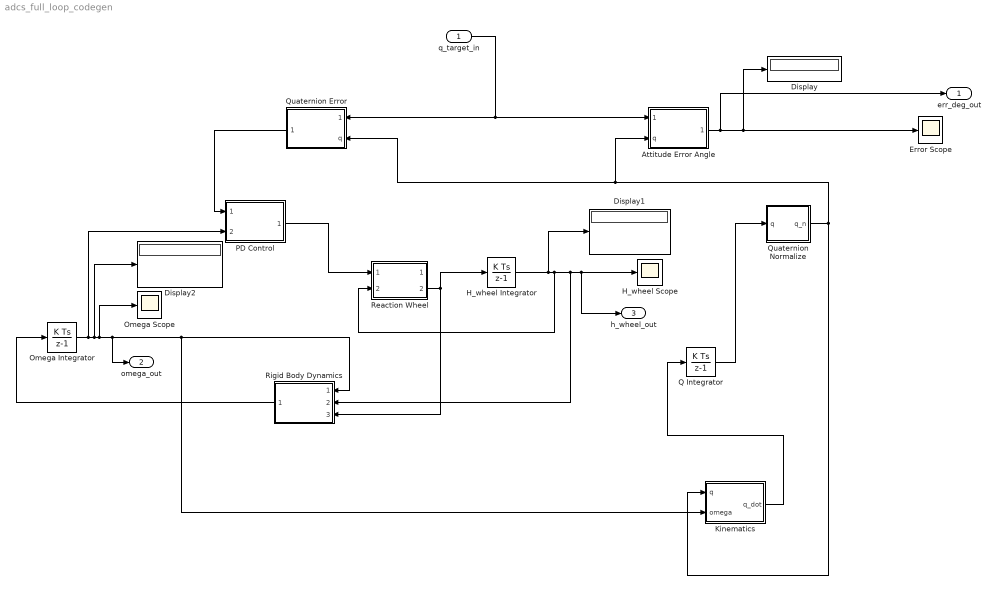
== matlab function adcs_full_loop_codegen/Kinematics ==
function q_dot = kinematics_block(q, omega)
    wx = omega(1); wy = omega(2); wz = omega(3);
    Omega = [ 0 -wx -wy -wz; wx 0 wz -wy; wy -wz 0 wx; wz wy -wx 0 ];
    q_dot = 0.5 * Omega * q;
end

== matlab function adcs_full_loop_codegen/Reaction Wheel ==
function [tau_body, h_wheel_dot] = reaction_wheel_block(tau_cmd_body, h_wheel)
    h_max = 0.01; tau_max = 0.0006;   % same values as reaction_wheel_model.m
    tau_wheel_cmd = -tau_cmd_body;     % same sign fix as the debugged .m version
    tau_actual = zeros(3,1);
    for i = 1:3
        tau_actual(i) = max(min(tau_wheel_cmd(i), tau_max), -tau_max);
    end
    for i = 1:3
        if (h_wheel(i) >= h_max && tau_actual(i) > 0) || ...
           (h_wheel(i) <= -h_max && tau_actual(i) < 0)
            tau_actual(i) = 0;
        end
    end
    h_wheel_dot = tau_actual;
    tau_body = -tau_actual;
end

== matlab function adcs_full_loop_codegen/Quaternion Normalize ==
function q_n = normalize_block(q)
    q_n = q / norm(q);
end

== matlab function adcs_full_loop_codegen/Attitude Error Angle ==
function err_deg = error_angle_block(q_target, q)
    q0 = q(1); qv = q(2:4);
    r0 = q_target(1); rv = -q_target(2:4);
    qe0 = r0*q0 - dot(rv,qv);
    if qe0 < 0, qe0 = -qe0; end
    qe0 = min(max(qe0,-1),1);
    err_deg = 2*acosd(qe0);
end

== matlab function adcs_full_loop_codegen/Quaternion Error ==
function qe_vec = quaternion_error_block(q_target, q)
    q0 = q(1); qv = q(2:4);
    r0 = q_target(1); rv = -q_target(2:4);  % conjugate of q_target inline
    qe0 = r0*q0 - dot(rv,qv);
    qe_vec = r0*qv + q0*rv + cross(rv,qv);
    if qe0 < 0
        qe_vec = -qe_vec;   % shortest-path correction, same as pid_attitude_control.m
    end
end

== matlab function adcs_full_loop_codegen/PD Control ==
function tau_cmd = pd_control_block(qe_vec, omega)
    Kp = 3e-3;   % SAME gains as main_pointing.m -- keep in sync if you retune
    Kd = 1.2e-2;
    tau_cmd = -Kp*qe_vec - Kd*omega;
end

== matlab function adcs_full_loop_codegen/Rigid Body Dynamics ==
function omega_dot = rigid_body_dynamics_block(omega, h_wheel, h_wheel_dot)
    I = diag([0.04187, 0.04187, 0.006667]);   % same 3U CubeSat inertia as inertia_properties.m
    H_total = I*omega + h_wheel;
    gyroscopic_term = cross(omega, H_total);
    omega_dot = I \ (-gyroscopic_term - h_wheel_dot);   % tau_ext = 0 (pointing loop only, no disturbance)
end

/*
 * Academic License - for use in teaching, academic research, and meeting
 * course requirements at degree granting institutions only.  Not for
 * government, commercial, or other organizational use.
 *
 * File: adcs_full_loop_codegen.c
 *
 * Code generated for Simulink model 'adcs_full_loop_codegen'.
 *
 * Model version                  : 1.13
 * Simulink Coder version         : 25.1 (R2025a) 21-Nov-2024
 * C/C++ source code generated on : Wed Sep  9 17:34:35 2026
 *
 * Target selection: ert.tlc
 * Embedded hardware selection: Intel->x86-64 (Windows64)
 * Code generation objectives: Unspecified
 * Validation result: Not run
 */

#include "adcs_full_loop_codegen.h"
#include <math.h>
#include <emmintrin.h>
#include "rtwtypes.h"

/* Block states (default storage) */
DW_adcs_full_loop_codegen_T adcs_full_loop_codegen_DW;

/* External inputs (root inport signals with default storage) */
ExtU_adcs_full_loop_codegen_T adcs_full_loop_codegen_U;

/* External outputs (root outports fed by signals with default storage) */
ExtY_adcs_full_loop_codegen_T adcs_full_loop_codegen_Y;

/* Real-time model */
static RT_MODEL_adcs_full_loop_codeg_T adcs_full_loop_codegen_M_;
RT_MODEL_adcs_full_loop_codeg_T *const adcs_full_loop_codegen_M =
  &adcs_full_loop_codegen_M_;

/* Model step function */
void adcs_full_loop_codegen_step(void)
{
  __m128d tmp_1;
  __m128d tmp_2;
  real_T tmp[16];
  real_T rtb_q_n[4];
  real_T rtb_qe_vec[3];
  real_T rtb_tau_body[3];
  real_T rv[3];
  real_T tmp_0[2];
  real_T absxk;
  real_T scale;
  real_T t;
  real_T y;
  int32_T i;
  int32_T tmp_3;
  static const real_T a[9] = { 0.04187, 0.0, 0.0, 0.0, 0.04187, 0.0, 0.0, 0.0,
    0.006667 };

  /* MATLAB Function: '<Root>/Quaternion Normalize' incorporates:
   *  DiscreteIntegrator: '<Root>/Q Integrator'
   */
  scale = 3.3121686421112381E-170;
  absxk = fabs(adcs_full_loop_codegen_DW.QIntegrator_DSTATE[0]);
  if (absxk > 3.3121686421112381E-170) {
    y = 1.0;
    scale = absxk;
  } else {
    t = absxk / 3.3121686421112381E-170;
    y = t * t;
  }

  absxk = fabs(adcs_full_loop_codegen_DW.QIntegrator_DSTATE[1]);
  if (absxk > scale) {
    t = scale / absxk;
    y = y * t * t + 1.0;
    scale = absxk;
  } else {
    t = absxk / scale;
    y += t * t;
  }

  absxk = fabs(adcs_full_loop_codegen_DW.QIntegrator_DSTATE[2]);
  if (absxk > scale) {
    t = scale / absxk;
    y = y * t * t + 1.0;
    scale = absxk;
  } else {
    t = absxk / scale;
    y += t * t;
  }

  absxk = fabs(adcs_full_loop_codegen_DW.QIntegrator_DSTATE[3]);
  if (absxk > scale) {
    t = scale / absxk;
    y = y * t * t + 1.0;
    scale = absxk;
  } else {
    t = absxk / scale;
    y += t * t;
  }

  tmp_2 = _mm_set1_pd(scale * sqrt(y));

  /* DiscreteIntegrator: '<Root>/Q Integrator' */
  tmp_1 = _mm_div_pd(_mm_loadu_pd(&adcs_full_loop_codegen_DW.QIntegrator_DSTATE
    [0]), tmp_2);

  /* MATLAB Function: '<Root>/Quaternion Normalize' */
  _mm_storeu_pd(&rtb_q_n[0], tmp_1);

  /* DiscreteIntegrator: '<Root>/Q Integrator' */
  tmp_2 = _mm_div_pd(_mm_loadu_pd(&adcs_full_loop_codegen_DW.QIntegrator_DSTATE
    [2]), tmp_2);

  /* MATLAB Function: '<Root>/Quaternion Normalize' */
  _mm_storeu_pd(&rtb_q_n[2], tmp_2);

  /* Outport: '<Root>/omega_out' incorporates:
   *  DiscreteIntegrator: '<Root>/Omega Integrator'
   */
  adcs_full_loop_codegen_Y.omega_out[0] =
    adcs_full_loop_codegen_DW.OmegaIntegrator_DSTATE[0];

  /* MATLAB Function: '<Root>/Quaternion Error' incorporates:
   *  Inport: '<Root>/q_target_in'
   */
  rv[0] = -adcs_full_loop_codegen_U.q_target_in[1];

  /* Outport: '<Root>/omega_out' incorporates:
   *  DiscreteIntegrator: '<Root>/Omega Integrator'
   */
  adcs_full_loop_codegen_Y.omega_out[1] =
    adcs_full_loop_codegen_DW.OmegaIntegrator_DSTATE[1];

  /* MATLAB Function: '<Root>/Quaternion Error' incorporates:
   *  Inport: '<Root>/q_target_in'
   */
  rv[1] = -adcs_full_loop_codegen_U.q_target_in[2];

  /* Outport: '<Root>/omega_out' incorporates:
   *  DiscreteIntegrator: '<Root>/Omega Integrator'
   */
  adcs_full_loop_codegen_Y.omega_out[2] =
    adcs_full_loop_codegen_DW.OmegaIntegrator_DSTATE[2];

  /* MATLAB Function: '<Root>/Quaternion Error' incorporates:
   *  Inport: '<Root>/q_target_in'
   *  MATLAB Function: '<Root>/Attitude Error Angle'
   */
  rv[2] = -adcs_full_loop_codegen_U.q_target_in[3];
  tmp_2 = _mm_add_pd(_mm_add_pd(_mm_mul_pd(_mm_set1_pd
    (adcs_full_loop_codegen_U.q_target_in[0]), _mm_loadu_pd(&rtb_q_n[1])),
    _mm_mul_pd(_mm_set1_pd(rtb_q_n[0]), _mm_set_pd
               (-adcs_full_loop_codegen_U.q_target_in[2],
                -adcs_full_loop_codegen_U.q_target_in[1]))), _mm_sub_pd
                     (_mm_mul_pd(_mm_set_pd(rtb_q_n[1],
    -adcs_full_loop_codegen_U.q_target_in[2]), _mm_set_pd
    (-adcs_full_loop_codegen_U.q_target_in[3], rtb_q_n[3])), _mm_mul_pd
                      (_mm_set_pd(-adcs_full_loop_codegen_U.q_target_in[1],
    rtb_q_n[2]), _mm_set_pd(rtb_q_n[3], -adcs_full_loop_codegen_U.q_target_in[3]))));
  _mm_storeu_pd(&rtb_qe_vec[0], tmp_2);
  rtb_qe_vec[2] = (adcs_full_loop_codegen_U.q_target_in[0] * rtb_q_n[3] +
                   rtb_q_n[0] * -adcs_full_loop_codegen_U.q_target_in[3]) +
    (-adcs_full_loop_codegen_U.q_target_in[1] * rtb_q_n[2] - rtb_q_n[1] *
     -adcs_full_loop_codegen_U.q_target_in[2]);
  scale = adcs_full_loop_codegen_U.q_target_in[0] * rtb_q_n[0];
  if (scale - ((-adcs_full_loop_codegen_U.q_target_in[1] * rtb_q_n[1] +
                -adcs_full_loop_codegen_U.q_target_in[2] * rtb_q_n[2]) +
               -adcs_full_loop_codegen_U.q_target_in[3] * rtb_q_n[3]) < 0.0) {
    rtb_qe_vec[0] = -rtb_qe_vec[0];
    rtb_qe_vec[1] = -rtb_qe_vec[1];
    rtb_qe_vec[2] = -rtb_qe_vec[2];
  }

  /* MATLAB Function: '<Root>/Attitude Error Angle' */
  absxk = 0.0;
  for (i = 0; i < 3; i++) {
    /* MATLAB Function: '<Root>/Reaction Wheel' incorporates:
     *  DiscreteIntegrator: '<Root>/Omega Integrator'
     *  MATLAB Function: '<Root>/PD Control'
     */
    t = fmax(fmin(-(-0.003 * rtb_qe_vec[i] - 0.012 *
                    adcs_full_loop_codegen_DW.OmegaIntegrator_DSTATE[i]), 0.0006),
             -0.0006);
    rtb_tau_body[i] = t;

    /* DiscreteIntegrator: '<Root>/H_wheel Integrator' incorporates:
     *  MATLAB Function: '<Root>/Reaction Wheel'
     */
    y = adcs_full_loop_codegen_DW.H_wheelIntegrator_DSTATE[i];

    /* MATLAB Function: '<Root>/Reaction Wheel' incorporates:
     *  DiscreteIntegrator: '<Root>/H_wheel Integrator'
     */
    if ((y >= 0.01) && (t > 0.0)) {
      rtb_tau_body[i] = 0.0;
    } else if ((y <= -0.01) && (t < 0.0)) {
      rtb_tau_body[i] = 0.0;
    }

    /* MATLAB Function: '<Root>/Rigid Body Dynamics' incorporates:
     *  DiscreteIntegrator: '<Root>/H_wheel Integrator'
     *  DiscreteIntegrator: '<Root>/Omega Integrator'
     */
    rtb_qe_vec[i] = ((a[i + 3] *
                      adcs_full_loop_codegen_DW.OmegaIntegrator_DSTATE[1] + a[i]
                      * adcs_full_loop_codegen_DW.OmegaIntegrator_DSTATE[0]) +
                     a[i + 6] *
                     adcs_full_loop_codegen_DW.OmegaIntegrator_DSTATE[2]) + y;

    /* Outport: '<Root>/h_wheel_out' incorporates:
     *  DiscreteIntegrator: '<Root>/H_wheel Integrator'
     */
    adcs_full_loop_codegen_Y.h_wheel_out[i] = y;

    /* MATLAB Function: '<Root>/Attitude Error Angle' */
    absxk += rtb_q_n[i + 1] * rv[i];
  }

  /* MATLAB Function: '<Root>/Rigid Body Dynamics' incorporates:
   *  DiscreteIntegrator: '<Root>/Omega Integrator'
   *  MATLAB Function: '<Root>/Reaction Wheel'
   */
  tmp_2 = _mm_sub_pd(_mm_set_pd(-(rtb_qe_vec[0] *
    adcs_full_loop_codegen_DW.OmegaIntegrator_DSTATE[2] -
    adcs_full_loop_codegen_DW.OmegaIntegrator_DSTATE[0] * rtb_qe_vec[2]),
    -(adcs_full_loop_codegen_DW.OmegaIntegrator_DSTATE[1] * rtb_qe_vec[2] -
      rtb_qe_vec[1] * adcs_full_loop_codegen_DW.OmegaIntegrator_DSTATE[2])),
                     _mm_loadu_pd(&rtb_tau_body[0]));
  _mm_storeu_pd(&tmp_0[0], tmp_2);

  /* MATLAB Function: '<Root>/Rigid Body Dynamics' incorporates:
   *  DiscreteIntegrator: '<Root>/Omega Integrator'
   *  MATLAB Function: '<Root>/Reaction Wheel'
   */
  t = -(adcs_full_loop_codegen_DW.OmegaIntegrator_DSTATE[0] * rtb_qe_vec[1] -
        rtb_qe_vec[0] * adcs_full_loop_codegen_DW.OmegaIntegrator_DSTATE[1]) -
    rtb_tau_body[2];
  y = tmp_0[0] * 0.0;
  rtb_qe_vec[1] = tmp_0[1] - y;
  rtb_qe_vec[2] = (t - y) - rtb_qe_vec[1] * 0.0;
  rtb_qe_vec[2] /= 0.006667;
  _mm_storeu_pd(&rtb_qe_vec[0], _mm_sub_pd(_mm_set_pd(rtb_qe_vec[1], tmp_0[0]),
    _mm_mul_pd(_mm_set_pd(rtb_qe_vec[2], 0.0), _mm_set_pd(0.0, rtb_qe_vec[2]))));
  rtb_qe_vec[1] /= 0.04187;
  rtb_qe_vec[0] -= 0.0 * rtb_qe_vec[1];
  rtb_qe_vec[0] /= 0.04187;

  /* MATLAB Function: '<Root>/Attitude Error Angle' */
  scale -= absxk;
  if (scale < 0.0) {
    scale = -scale;
  }

  /* Outport: '<Root>/err_deg_out' incorporates:
   *  MATLAB Function: '<Root>/Attitude Error Angle'
   */
  adcs_full_loop_codegen_Y.err_deg_out = 57.295779513082323 * acos(fmin(fmax
    (scale, -1.0), 1.0)) * 2.0;

  /* MATLAB Function: '<Root>/Kinematics' incorporates:
   *  DiscreteIntegrator: '<Root>/Omega Integrator'
   */
  tmp[0] = 0.0;
  tmp_2 = _mm_set1_pd(0.5);
  _mm_storeu_pd(&tmp_0[0], _mm_mul_pd(tmp_2, _mm_set_pd
    (-adcs_full_loop_codegen_DW.OmegaIntegrator_DSTATE[1],
     -adcs_full_loop_codegen_DW.OmegaIntegrator_DSTATE[0])));
  tmp[4] = tmp_0[0];
  tmp[8] = tmp_0[1];
  _mm_storeu_pd(&tmp_0[0], _mm_mul_pd(tmp_2, _mm_set_pd
    (adcs_full_loop_codegen_DW.OmegaIntegrator_DSTATE[0],
     -adcs_full_loop_codegen_DW.OmegaIntegrator_DSTATE[2])));
  tmp[12] = tmp_0[0];
  tmp[1] = tmp_0[1];
  tmp[5] = 0.0;
  _mm_storeu_pd(&tmp_0[0], _mm_mul_pd(tmp_2, _mm_set_pd
    (-adcs_full_loop_codegen_DW.OmegaIntegrator_DSTATE[1],
     adcs_full_loop_codegen_DW.OmegaIntegrator_DSTATE[2])));
  tmp[9] = tmp_0[0];
  tmp[13] = tmp_0[1];
  _mm_storeu_pd(&tmp_0[0], _mm_mul_pd(tmp_2, _mm_set_pd
    (-adcs_full_loop_codegen_DW.OmegaIntegrator_DSTATE[2],
     adcs_full_loop_codegen_DW.OmegaIntegrator_DSTATE[1])));
  tmp[2] = tmp_0[0];
  tmp[6] = tmp_0[1];
  tmp[10] = 0.0;
  _mm_storeu_pd(&tmp_0[0], _mm_mul_pd(tmp_2, _mm_set_pd
    (adcs_full_loop_codegen_DW.OmegaIntegrator_DSTATE[2],
     adcs_full_loop_codegen_DW.OmegaIntegrator_DSTATE[0])));
  tmp[14] = tmp_0[0];
  tmp[3] = tmp_0[1];
  _mm_storeu_pd(&tmp_0[0], _mm_mul_pd(tmp_2, _mm_set_pd
    (-adcs_full_loop_codegen_DW.OmegaIntegrator_DSTATE[0],
     adcs_full_loop_codegen_DW.OmegaIntegrator_DSTATE[1])));
  tmp[7] = tmp_0[0];
  tmp[11] = tmp_0[1];
  tmp[15] = 0.0;
  scale = 0.0;
  absxk = 0.0;
  t = 0.0;
  y = 0.0;
  for (i = 0; i < 4; i++) {
    tmp_3 = i << 2;
    tmp_2 = _mm_set1_pd(rtb_q_n[i]);
    tmp_1 = _mm_add_pd(_mm_mul_pd(_mm_loadu_pd(&tmp[tmp_3]), tmp_2), _mm_set_pd
                       (absxk, scale));
    _mm_storeu_pd(&tmp_0[0], tmp_1);
    scale = tmp_0[0];
    absxk = tmp_0[1];
    tmp_2 = _mm_add_pd(_mm_mul_pd(_mm_loadu_pd(&tmp[tmp_3 + 2]), tmp_2),
                       _mm_set_pd(y, t));
    _mm_storeu_pd(&tmp_0[0], tmp_2);
    t = tmp_0[0];
    y = tmp_0[1];
  }

  /* Update for DiscreteIntegrator: '<Root>/Q Integrator' */
  tmp_2 = _mm_set1_pd(0.01);

  /* MATLAB Function: '<Root>/Kinematics' incorporates:
   *  DiscreteIntegrator: '<Root>/Q Integrator'
   */
  tmp_1 = _mm_add_pd(_mm_mul_pd(tmp_2, _mm_set_pd(absxk, scale)), _mm_loadu_pd
                     (&adcs_full_loop_codegen_DW.QIntegrator_DSTATE[0]));

  /* Update for DiscreteIntegrator: '<Root>/Q Integrator' */
  _mm_storeu_pd(&adcs_full_loop_codegen_DW.QIntegrator_DSTATE[0], tmp_1);

  /* MATLAB Function: '<Root>/Kinematics' incorporates:
   *  DiscreteIntegrator: '<Root>/Q Integrator'
   */
  tmp_1 = _mm_add_pd(_mm_mul_pd(tmp_2, _mm_set_pd(y, t)), _mm_loadu_pd
                     (&adcs_full_loop_codegen_DW.QIntegrator_DSTATE[2]));

  /* Update for DiscreteIntegrator: '<Root>/Q Integrator' */
  _mm_storeu_pd(&adcs_full_loop_codegen_DW.QIntegrator_DSTATE[2], tmp_1);

  /* MATLAB Function: '<Root>/Reaction Wheel' incorporates:
   *  DiscreteIntegrator: '<Root>/H_wheel Integrator'
   *  DiscreteIntegrator: '<Root>/Omega Integrator'
   *  MATLAB Function: '<Root>/Rigid Body Dynamics'
   */
  _mm_storeu_pd(&tmp_0[0], _mm_add_pd(_mm_mul_pd(tmp_2, _mm_set_pd(rtb_tau_body
    [0], rtb_qe_vec[0])), _mm_set_pd
    (adcs_full_loop_codegen_DW.H_wheelIntegrator_DSTATE[0],
     adcs_full_loop_codegen_DW.OmegaIntegrator_DSTATE[0])));

  /* Update for DiscreteIntegrator: '<Root>/Omega Integrator' */
  adcs_full_loop_codegen_DW.OmegaIntegrator_DSTATE[0] = tmp_0[0];

  /* Update for DiscreteIntegrator: '<Root>/H_wheel Integrator' */
  adcs_full_loop_codegen_DW.H_wheelIntegrator_DSTATE[0] = tmp_0[1];

  /* MATLAB Function: '<Root>/Reaction Wheel' incorporates:
   *  DiscreteIntegrator: '<Root>/H_wheel Integrator'
   *  DiscreteIntegrator: '<Root>/Omega Integrator'
   *  MATLAB Function: '<Root>/Rigid Body Dynamics'
   */
  _mm_storeu_pd(&tmp_0[0], _mm_add_pd(_mm_mul_pd(tmp_2, _mm_set_pd(rtb_tau_body
    [1], rtb_qe_vec[1])), _mm_set_pd
    (adcs_full_loop_codegen_DW.H_wheelIntegrator_DSTATE[1],
     adcs_full_loop_codegen_DW.OmegaIntegrator_DSTATE[1])));

  /* Update for DiscreteIntegrator: '<Root>/Omega Integrator' */
  adcs_full_loop_codegen_DW.OmegaIntegrator_DSTATE[1] = tmp_0[0];

  /* Update for DiscreteIntegrator: '<Root>/H_wheel Integrator' */
  adcs_full_loop_codegen_DW.H_wheelIntegrator_DSTATE[1] = tmp_0[1];

  /* MATLAB Function: '<Root>/Reaction Wheel' incorporates:
   *  DiscreteIntegrator: '<Root>/H_wheel Integrator'
   *  DiscreteIntegrator: '<Root>/Omega Integrator'
   *  MATLAB Function: '<Root>/Rigid Body Dynamics'
   */
  _mm_storeu_pd(&tmp_0[0], _mm_add_pd(_mm_mul_pd(tmp_2, _mm_set_pd(rtb_tau_body
    [2], rtb_qe_vec[2])), _mm_set_pd
    (adcs_full_loop_codegen_DW.H_wheelIntegrator_DSTATE[2],
     adcs_full_loop_codegen_DW.OmegaIntegrator_DSTATE[2])));

  /* Update for DiscreteIntegrator: '<Root>/Omega Integrator' */
  adcs_full_loop_codegen_DW.OmegaIntegrator_DSTATE[2] = tmp_0[0];

  /* Update for DiscreteIntegrator: '<Root>/H_wheel Integrator' */
  adcs_full_loop_codegen_DW.H_wheelIntegrator_DSTATE[2] = tmp_0[1];
}
